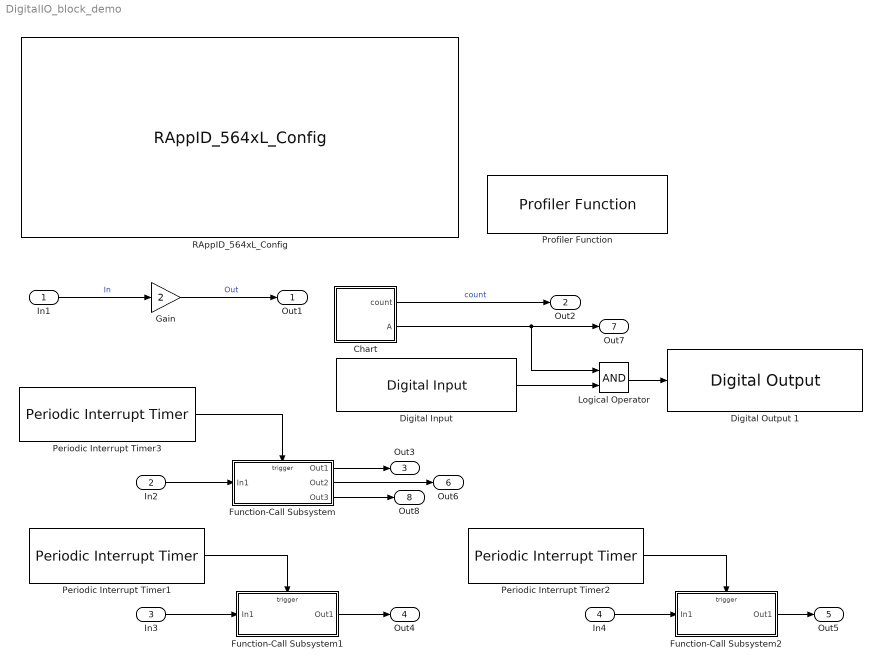
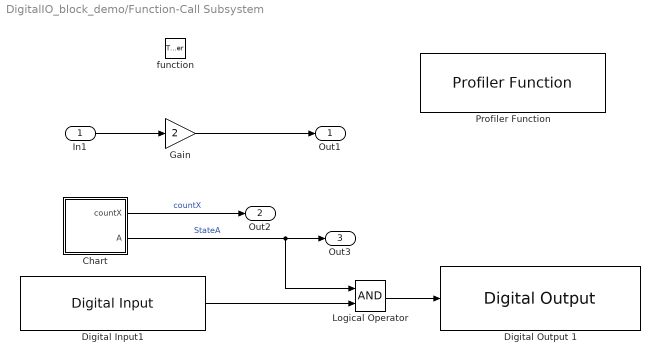
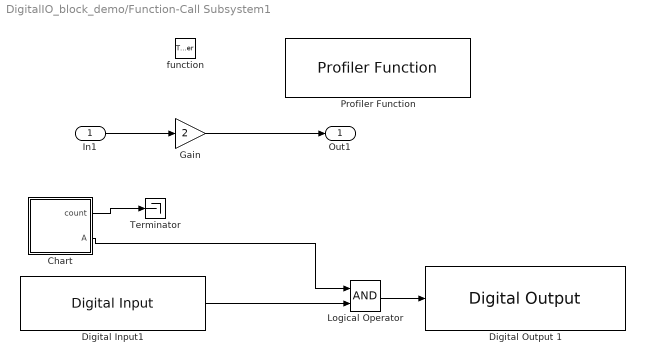
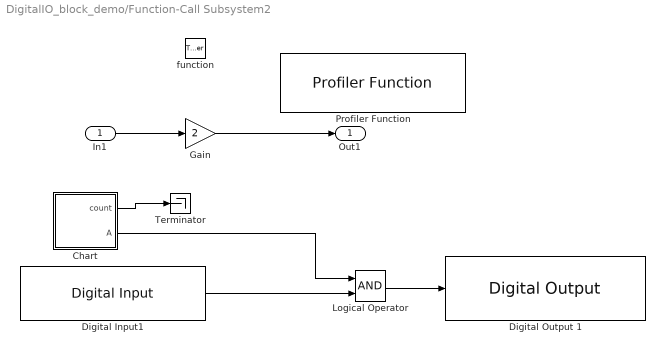
== stateflow chart Chart ==
  state A [parallel]
    state A
    state A1
    (default) -> A.A
    A.A -> A.A1
    A.A1 -> A.A : { count = count + 0.01;}
  state A1 [parallel]
    A1 -> (junction 10) : {a=0;}
    (junction 10) -> (junction 11) [order 1] : [a < 100] {a=a+1;}
    (junction 10) -> (junction 11) [order 2] : {a=0;}
  data: count output double [0..10000]; A output boolean [0..1]; a local double [0..100]

== stateflow chart Function-Call
Subsystem/Chart ==
  state A
  state A1
  (default) -> A
  A -> A1
  A1 -> A : { countX = countX + 0.01;}
  data: countX output single [0..10000]; A output boolean [0..1]

== stateflow chart Function-Call
Subsystem1/Chart ==
  state A
  state A1
  (default) -> A : {count =0;}
  A -> A1
  A1 -> A : { count = count + 1;}
  data: count output double [0..10000]; A output boolean [0..1]

== stateflow chart Function-Call
Subsystem2/Chart ==
  state A
  state A1
  (default) -> A
  A -> A1
  A1 -> A : { count = count + 0.01;}
  data: count output double [0..10000]; A output boolean [0..1]

/*
 * Sponsored License - for use in support of a program or activity
 * sponsored by MathWorks.  Not for government, commercial or other
 * non-sponsored organizational use.
 *
 * File: DigitalIO_block_demo.c
 *
 * Code generated for Simulink model 'DigitalIO_block_demo'.
 *
 * Model version                  : 1.173
 * Simulink Coder version         : 8.11 (R2016b) 25-Aug-2016
 * C/C++ source code generated on : Thu Jul 27 15:22:07 2017
 *
 * Target selection: rappid564xl.tlc
 * Embedded hardware selection: Freescale->32-bit PowerPC
 * Code generation objectives: Unspecified
 * Validation result: Not run
 */

#include "DigitalIO_block_demo.h"
#include "DigitalIO_block_demo_private.h"

/* Named constants for Chart: '<S3>/Chart' */
#define DigitalIO_bl_IN_NO_ACTIVE_CHILD ((uint8_T)0U)
#define DigitalIO_block_demo_IN_A      ((uint8_T)1U)
#define DigitalIO_block_demo_IN_A1     ((uint8_T)2U)

/* Named constants for Chart: '<S4>/Chart' */
#define DigitalIO__IN_NO_ACTIVE_CHILD_m ((uint8_T)0U)
#define DigitalIO_block_demo_IN_A1_k   ((uint8_T)2U)
#define DigitalIO_block_demo_IN_A_i    ((uint8_T)1U)

/* Named constants for Chart: '<S2>/Chart' */
#define DigitalIO__IN_NO_ACTIVE_CHILD_f ((uint8_T)0U)
#define DigitalIO_block_demo_IN_A1_o   ((uint8_T)2U)
#define DigitalIO_block_demo_IN_A_o    ((uint8_T)1U)

/* Named constants for Chart: '<Root>/Chart' */
#define DigitalIO__IN_NO_ACTIVE_CHILD_k ((uint8_T)0U)
#define DigitalIO_block_demo_IN_A1_n   ((uint8_T)2U)
#define DigitalIO_block_demo_IN_A_k    ((uint8_T)1U)

/* Exported block signals */
real_T In;                             /* '<Root>/In1' */
real_T Out;                            /* '<Root>/Gain' */
real_T count;                          /* '<Root>/Chart' */
real32_T countX;                       /* '<S2>/Chart' */
boolean_T StateA;                      /* '<S2>/Chart' */

/* Block signals (auto storage) */
BlockIO_DigitalIO_block_demo DigitalIO_block_demo_B;

/* Block states (auto storage) */
D_Work_DigitalIO_block_demo DigitalIO_block_demo_DWork;

/* External inputs (root inport signals with auto storage) */
ExternalInputs_DigitalIO_block_ DigitalIO_block_demo_U;

/* External outputs (root outports fed by signals with auto storage) */
ExternalOutputs_DigitalIO_block DigitalIO_block_demo_Y;

/* System initialize for function-call system: '<Root>/Function-Call Subsystem1' */
void Dig_FunctionCallSubsystem1_Init(void)
{
  /* SystemInitialize for Chart: '<S3>/Chart' */
  DigitalIO_block_demo_DWork.is_active_c3_DigitalIO_block_de = 0U;
  DigitalIO_block_demo_DWork.is_c3_DigitalIO_block_demo =
    DigitalIO_bl_IN_NO_ACTIVE_CHILD;
  DigitalIO_block_demo_B.count_k = 0.0;
}

/* System reset for function-call system: '<Root>/Function-Call Subsystem1' */
void Di_FunctionCallSubsystem1_Reset(void)
{
  /* SystemReset for Chart: '<S3>/Chart' */
  DigitalIO_block_demo_DWork.is_active_c3_DigitalIO_block_de = 0U;
  DigitalIO_block_demo_DWork.is_c3_DigitalIO_block_demo =
    DigitalIO_bl_IN_NO_ACTIVE_CHILD;
  DigitalIO_block_demo_B.count_k = 0.0;
}

/* Start for function-call system: '<Root>/Function-Call Subsystem1' */
void Di_FunctionCallSubsystem1_Start(void)
{
  /* Start for S-Function (gpio_564xl_input): '<S3>/Digital Input1' */

  /* Initialize Pad Configuration Register 49 as Input */
  gpi_init_pcr_in_564xl_fnc( 49 );

  /* Start for S-Function (gpio_564xl_output): '<S3>/Digital Output 1' */

  /* Initialize Pad Configuration Register 53 as Output */
  gpo_init_pcr_out_564xl_fnc( 53 );
}

/* Output and update for function-call system: '<Root>/Function-Call Subsystem1' */
void DigitalI_FunctionCallSubsystem1(void)
{
  boolean_T rtb_A;

  /* user code (Output function Body) */
  {
    /* Start of Profile Code */
    vuint32_t tmp1;
    vuint32_t tmp2;
    tmp1 = gt_pf();

    /* Start Profiling This Function.*/

    /* Outport: '<Root>/Out4' incorporates:
     *  Gain: '<S3>/Gain'
     *  Inport: '<Root>/In3'
     */
    DigitalIO_block_demo_Y.Out4 = 2.0 * DigitalIO_block_demo_U.In3;

    /* Chart: '<S3>/Chart' */
    /* Gateway: Function-Call
       Subsystem1/Chart */
    /* During: Function-Call
       Subsystem1/Chart */
    if (DigitalIO_block_demo_DWork.is_active_c3_DigitalIO_block_de == 0U) {
      /* Entry: Function-Call
         Subsystem1/Chart */
      DigitalIO_block_demo_DWork.is_active_c3_DigitalIO_block_de = 1U;

      /* Entry Internal: Function-Call
         Subsystem1/Chart */
      /* Transition: '<S6>:1' */
      DigitalIO_block_demo_B.count_k = 0.0;
      DigitalIO_block_demo_DWork.is_c3_DigitalIO_block_demo =
        DigitalIO_block_demo_IN_A;
      rtb_A = true;
    } else if (DigitalIO_block_demo_DWork.is_c3_DigitalIO_block_demo ==
               DigitalIO_block_demo_IN_A) {
      /* During 'A': '<S6>:3' */
      /* Transition: '<S6>:7' */
      rtb_A = false;
      DigitalIO_block_demo_DWork.is_c3_DigitalIO_block_demo =
        DigitalIO_block_demo_IN_A1;
    } else {
      /* During 'A1': '<S6>:6' */
      /* Transition: '<S6>:8' */
      DigitalIO_block_demo_B.count_k++;
      DigitalIO_block_demo_DWork.is_c3_DigitalIO_block_demo =
        DigitalIO_block_demo_IN_A;
      rtb_A = true;
    }

    /* End of Chart: '<S3>/Chart' */

    /* S-Function (gpio_564xl_input): '<S3>/Digital Input1' */
    DigitalIO_block_demo_B.DigitalInput1_h = gpi_pin_read_564xl_fnc(49);/* GPI Pin Data Input Registers  */

    /* Logic: '<S3>/Logical Operator' */
    DigitalIO_block_demo_B.LogicalOperator_n = (rtb_A &&
      DigitalIO_block_demo_B.DigitalInput1_h);

    /* S-Function (gpio_564xl_output): '<S3>/Digital Output 1' */

    /* Pin Data Output Signal Update PCR[53]. */
    gpo_pin_update_564xl_fnc(53, DigitalIO_block_demo_B.LogicalOperator_n);/* GPO Pin Data Output Register Update */

    /* user code (Output function Trailer) */

    /* Profile Code : Compute execution cycles of function. */
    tmp2 = gt_pf();
    if (tmp1 < tmp2 ) {
      profile_buffer[2] = tmp2-tmp1;
    } else {
      profile_buffer[2] = 0xFFFFFFFF -(tmp1-tmp2);
    }

    /* End of Profile Code */
  }
}

/* System initialize for function-call system: '<Root>/Function-Call Subsystem2' */
void Dig_FunctionCallSubsystem2_Init(void)
{
  /* SystemInitialize for Chart: '<S4>/Chart' */
  DigitalIO_block_demo_DWork.is_active_c4_DigitalIO_block_de = 0U;
  DigitalIO_block_demo_DWork.is_c4_DigitalIO_block_demo =
    DigitalIO__IN_NO_ACTIVE_CHILD_m;
  DigitalIO_block_demo_B.count_d = 0.0;
}

/* System reset for function-call system: '<Root>/Function-Call Subsystem2' */
void Di_FunctionCallSubsystem2_Reset(void)
{
  /* SystemReset for Chart: '<S4>/Chart' */
  DigitalIO_block_demo_DWork.is_active_c4_DigitalIO_block_de = 0U;
  DigitalIO_block_demo_DWork.is_c4_DigitalIO_block_demo =
    DigitalIO__IN_NO_ACTIVE_CHILD_m;
  DigitalIO_block_demo_B.count_d = 0.0;
}

/* Start for function-call system: '<Root>/Function-Call Subsystem2' */
void Di_FunctionCallSubsystem2_Start(void)
{
  /* Start for S-Function (gpio_564xl_input): '<S4>/Digital Input1' */

  /* Initialize Pad Configuration Register 50 as Input */
  gpi_init_pcr_in_564xl_fnc( 50 );

  /* Start for S-Function (gpio_564xl_output): '<S4>/Digital Output 1' */

  /* Initialize Pad Configuration Register 54 as Output */
  gpo_init_pcr_out_564xl_fnc( 54 );
}

/* Output and update for function-call system: '<Root>/Function-Call Subsystem2' */
void DigitalI_FunctionCallSubsystem2(void)
{
  boolean_T rtb_A;

  /* user code (Output function Body) */
  {
    /* Start of Profile Code */
    vuint32_t tmp1;
    vuint32_t tmp2;
    tmp1 = gt_pf();

    /* Start Profiling This Function.*/

    /* Outport: '<Root>/Out5' incorporates:
     *  Gain: '<S4>/Gain'
     *  Inport: '<Root>/In4'
     */
    DigitalIO_block_demo_Y.Out5 = 2.0 * DigitalIO_block_demo_U.In4;

    /* Chart: '<S4>/Chart' */
    /* Gateway: Function-Call
       Subsystem2/Chart */
    /* During: Function-Call
       Subsystem2/Chart */
    if (DigitalIO_block_demo_DWork.is_active_c4_DigitalIO_block_de == 0U) {
      /* Entry: Function-Call
         Subsystem2/Chart */
      DigitalIO_block_demo_DWork.is_active_c4_DigitalIO_block_de = 1U;

      /* Entry Internal: Function-Call
         Subsystem2/Chart */
      /* Transition: '<S7>:1' */
      DigitalIO_block_demo_DWork.is_c4_DigitalIO_block_demo =
        DigitalIO_block_demo_IN_A_i;
      rtb_A = true;
    } else if (DigitalIO_block_demo_DWork.is_c4_DigitalIO_block_demo ==
               DigitalIO_block_demo_IN_A_i) {
      /* During 'A': '<S7>:3' */
      /* Transition: '<S7>:7' */
      rtb_A = false;
      DigitalIO_block_demo_DWork.is_c4_DigitalIO_block_demo =
        DigitalIO_block_demo_IN_A1_k;
    } else {
      /* During 'A1': '<S7>:6' */
      /* Transition: '<S7>:8' */
      DigitalIO_block_demo_B.count_d += 0.01;
      DigitalIO_block_demo_DWork.is_c4_DigitalIO_block_demo =
        DigitalIO_block_demo_IN_A_i;
      rtb_A = true;
    }

    /* End of Chart: '<S4>/Chart' */

    /* S-Function (gpio_564xl_input): '<S4>/Digital Input1' */
    DigitalIO_block_demo_B.DigitalInput1_n = gpi_pin_read_564xl_fnc(50);/* GPI Pin Data Input Registers  */

    /* Logic: '<S4>/Logical Operator' */
    DigitalIO_block_demo_B.LogicalOperator_df = (rtb_A &&
      DigitalIO_block_demo_B.DigitalInput1_n);

    /* S-Function (gpio_564xl_output): '<S4>/Digital Output 1' */

    /* Pin Data Output Signal Update PCR[54]. */
    gpo_pin_update_564xl_fnc(54, DigitalIO_block_demo_B.LogicalOperator_df);/* GPO Pin Data Output Register Update */

    /* user code (Output function Trailer) */

    /* Profile Code : Compute execution cycles of function. */
    tmp2 = gt_pf();
    if (tmp1 < tmp2 ) {
      profile_buffer[3] = tmp2-tmp1;
    } else {
      profile_buffer[3] = 0xFFFFFFFF -(tmp1-tmp2);
    }

    /* End of Profile Code */
  }
}

/* System initialize for function-call system: '<Root>/Function-Call Subsystem' */
void Digi_FunctionCallSubsystem_Init(void)
{
  /* SystemInitialize for Chart: '<S2>/Chart' */
  DigitalIO_block_demo_DWork.is_active_c2_DigitalIO_block_de = 0U;
  DigitalIO_block_demo_DWork.is_c2_DigitalIO_block_demo =
    DigitalIO__IN_NO_ACTIVE_CHILD_f;
  countX = 0.0F;
  StateA = false;
}

/* System reset for function-call system: '<Root>/Function-Call Subsystem' */
void Dig_FunctionCallSubsystem_Reset(void)
{
  /* SystemReset for Chart: '<S2>/Chart' */
  DigitalIO_block_demo_DWork.is_active_c2_DigitalIO_block_de = 0U;
  DigitalIO_block_demo_DWork.is_c2_DigitalIO_block_demo =
    DigitalIO__IN_NO_ACTIVE_CHILD_f;
  countX = 0.0F;
  StateA = false;
}

/* Start for function-call system: '<Root>/Function-Call Subsystem' */
void Dig_FunctionCallSubsystem_Start(void)
{
  /* Start for S-Function (gpio_564xl_input): '<S2>/Digital Input1' */

  /* Initialize Pad Configuration Register 48 as Input */
  gpi_init_pcr_in_564xl_fnc( 48 );

  /* Start for S-Function (gpio_564xl_output): '<S2>/Digital Output 1' */

  /* Initialize Pad Configuration Register 52 as Output */
  gpo_init_pcr_out_564xl_fnc( 52 );
}

/* Output and update for function-call system: '<Root>/Function-Call Subsystem' */
void DigitalIO_FunctionCallSubsystem(void)
{
  /* user code (Output function Body) */
  {
    /* Start of Profile Code */
    vuint32_t tmp1;
    vuint32_t tmp2;
    tmp1 = gt_pf();

    /* Start Profiling This Function.*/

    /* Outport: '<Root>/Out3' incorporates:
     *  Gain: '<S2>/Gain'
     *  Inport: '<Root>/In2'
     */
    DigitalIO_block_demo_Y.Out3 = 2.0 * DigitalIO_block_demo_U.In2;

    /* Chart: '<S2>/Chart' */
    /* Gateway: Function-Call
       Subsystem/Chart */
    /* During: Function-Call
       Subsystem/Chart */
    if (DigitalIO_block_demo_DWork.is_active_c2_DigitalIO_block_de == 0U) {
      /* Entry: Function-Call
         Subsystem/Chart */
      DigitalIO_block_demo_DWork.is_active_c2_DigitalIO_block_de = 1U;

      /* Entry Internal: Function-Call
         Subsystem/Chart */
      /* Transition: '<S5>:1' */
      DigitalIO_block_demo_DWork.is_c2_DigitalIO_block_demo =
        DigitalIO_block_demo_IN_A_o;
      StateA = true;
    } else if (DigitalIO_block_demo_DWork.is_c2_DigitalIO_block_demo ==
               DigitalIO_block_demo_IN_A_o) {
      /* During 'A': '<S5>:3' */
      /* Transition: '<S5>:7' */
      StateA = false;
      DigitalIO_block_demo_DWork.is_c2_DigitalIO_block_demo =
        DigitalIO_block_demo_IN_A1_o;
    } else {
      /* During 'A1': '<S5>:6' */
      /* Transition: '<S5>:8' */
      countX = (real32_T)(countX + 0.01);
      DigitalIO_block_demo_DWork.is_c2_DigitalIO_block_demo =
        DigitalIO_block_demo_IN_A_o;
      StateA = true;
    }

    /* End of Chart: '<S2>/Chart' */

    /* S-Function (gpio_564xl_input): '<S2>/Digital Input1' */
    DigitalIO_block_demo_B.DigitalInput1 = gpi_pin_read_564xl_fnc(48);/* GPI Pin Data Input Registers  */

    /* Logic: '<S2>/Logical Operator' */
    DigitalIO_block_demo_B.LogicalOperator_d = (StateA &&
      DigitalIO_block_demo_B.DigitalInput1);

    /* S-Function (gpio_564xl_output): '<S2>/Digital Output 1' */

    /* Pin Data Output Signal Update PCR[52]. */
    gpo_pin_update_564xl_fnc(52, DigitalIO_block_demo_B.LogicalOperator_d);/* GPO Pin Data Output Register Update */

    /* user code (Output function Trailer) */

    /* Profile Code : Compute execution cycles of function. */
    tmp2 = gt_pf();
    if (tmp1 < tmp2 ) {
      profile_buffer[0] = tmp2-tmp1;
    } else {
      profile_buffer[0] = 0xFFFFFFFF -(tmp1-tmp2);
    }

    /* End of Profile Code */
  }
}

/* Model step function */
void DigitalIO_block_demo_step(void)
{
  boolean_T rtb_A;

  /* user code (Output function Body) */
  {
    /* Start of Profile Code */
    vuint32_t tmp1;
    vuint32_t tmp2;
    tmp1 = gt_pf();

    /* Start Profiling This Function.*/

    /* Gain: '<Root>/Gain' incorporates:
     *  Inport: '<Root>/In1'
     */
    Out = 2.0 * In;

    /* Chart: '<Root>/Chart' */
    /* Gateway: Chart */
    /* During: Chart */
    if (DigitalIO_block_demo_DWork.is_active_c1_DigitalIO_block_de == 0U) {
      /* Entry: Chart */
      DigitalIO_block_demo_DWork.is_active_c1_DigitalIO_block_de = 1U;

      /* Entry Internal: Chart */
      DigitalIO_block_demo_DWork.is_active_A = 1U;

      /* Entry Internal 'A': '<S1>:11' */
      /* Transition: '<S1>:1' */
      DigitalIO_block_demo_DWork.is_A = DigitalIO_block_demo_IN_A_k;
      rtb_A = true;
      DigitalIO_block_demo_DWork.is_active_A1 = 1U;
    } else {
      /* During 'A': '<S1>:11' */
      if (DigitalIO_block_demo_DWork.is_A == DigitalIO_block_demo_IN_A_k) {
        /* During 'A': '<S1>:3' */
        /* Transition: '<S1>:7' */
        rtb_A = false;
        DigitalIO_block_demo_DWork.is_A = DigitalIO_block_demo_IN_A1_n;
      } else {
        /* During 'A1': '<S1>:6' */
        /* Transition: '<S1>:8' */
        count += 0.01;
        DigitalIO_block_demo_DWork.is_A = DigitalIO_block_demo_IN_A_k;
        rtb_A = true;
      }

      /* During 'A1': '<S1>:12' */
      /* Transition: '<S1>:13' */
    }

    /* End of Chart: '<Root>/Chart' */

    /* Outport: '<Root>/Out7' */
    DigitalIO_block_demo_Y.Out7 = rtb_A;

    /* S-Function (gpio_564xl_input): '<Root>/Digital Input' */
    DigitalIO_block_demo_B.DigitalInput = gpi_pin_read_564xl_fnc(51);/* GPI Pin Data Input Registers  */

    /* Logic: '<Root>/Logical Operator' */
    DigitalIO_block_demo_B.LogicalOperator = (rtb_A &&
      DigitalIO_block_demo_B.DigitalInput);

    /* S-Function (gpio_564xl_output): '<Root>/Digital Output 1' */

    /* Pin Data Output Signal Update PCR[55]. */
    gpo_pin_update_564xl_fnc(55, DigitalIO_block_demo_B.LogicalOperator);/* GPO Pin Data Output Register Update */

    /* user code (Output function Trailer) */

    /* Profile Code : Compute execution cycles of function. */
    tmp2 = gt_pf();
    if (tmp1 < tmp2 ) {
      profile_buffer[1] = tmp2-tmp1;
    } else {
      profile_buffer[1] = 0xFFFFFFFF -(tmp1-tmp2);
    }

    /* End of Profile Code */
  }
}
